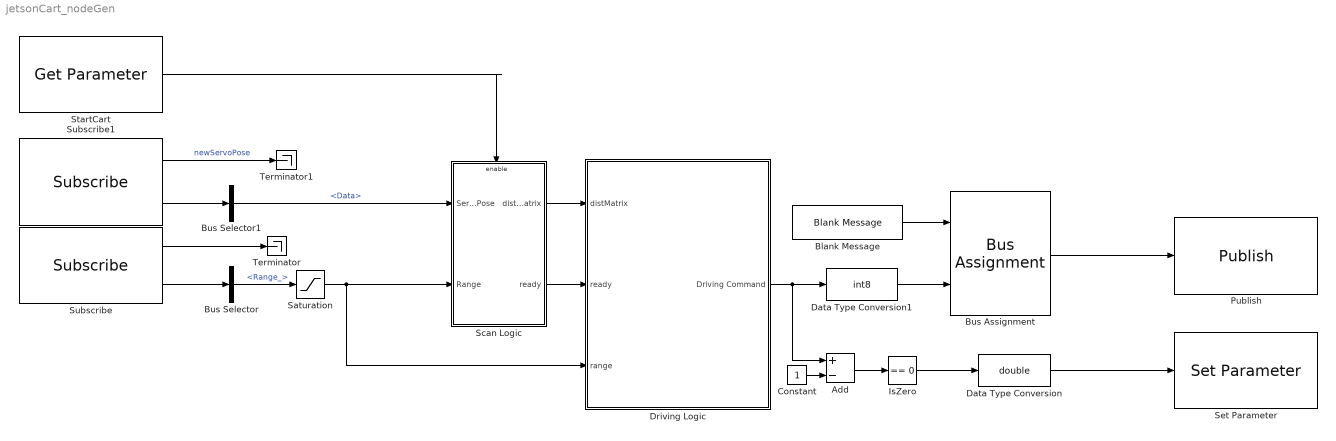
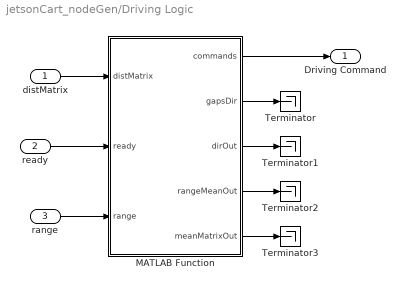
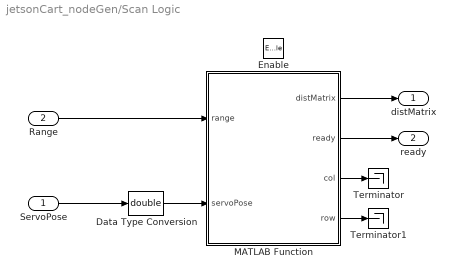
== matlab function jetsonCart_nodeGen/Driving Logic/MATLAB Function ==
function [commands, gapsDir, dirOut, rangeMeanOut, meanMatrixOut]  = fcn(distMatrix, ready, range)%#codegen
persistent doneScanning counter matrixTmp cmdTmp gapsTmp dirTmp rangeTmp meanMatrixTmp

if isempty(matrixTmp)
    matrixTmp = zeros(4,51);
end
if isempty(meanMatrixTmp)
    meanMatrixTmp = zeros(1,51);
end
if isempty(gapsTmp)
    gapsTmp = zeros(1,51);
end
if isempty(rangeTmp)
    rangeTmp = 0;
end
if isempty(dirTmp)
    dirTmp = 0;
end
if isempty(counter)
    counter = 0;
end
if isempty(cmdTmp)
    cmdTmp = 0;
end


if isnan(ready)
    cmdTmp = 1;
    doneScanning = 0;
    counter = 0;
elseif ready == 0
    cmdTmp = 1;
    doneScanning = 0;
    counter = 0;
else
    doneScanning = 1;
    matrixTmp = distMatrix;
end

if doneScanning == 1 && counter == 0
    counter = 1;
    meanMatrix = mean(matrixTmp);
    meanMatrixTmp = meanMatrix;
    gaps = zeros(1,51);
    for i = 1 : length(meanMatrix) - 5
        gaps(i) = mean(meanMatrix(i:i+5));
    end
    gapsTmp = gaps;
    [RangeMean, dir] = max(gaps);
    dirTmp = dir;
    rangeTmp = RangeMean;
    if RangeMean < 50
        cmdTmp = 3;
    else
        if dir <= 30 && dir >= 15
            cmdTmp = 2;
        elseif dir > 30
            cmdTmp = 5;
        else 
            cmdTmp = 4;
        end
    end
end


gapsDir = gapsTmp;
dirOut = dirTmp;
rangeMeanOut = rangeTmp;
meanMatrixOut = meanMatrixTmp;

%servoDir = (dir/51)*100 + 36;

if range < 50 %emergency stop
    cmdTmp = 1;
end

if cmdTmp ~=1
    counter = counter +1;
end

%control
if cmdTmp == 2 || cmdTmp == 3 %driving time for backward or forward drive
    drivingTime = 60;%driving time for backward or forward drive
elseif cmdTmp == 4
    drivingTime = abs((1-15/dirOut)*10 + 10)/2;
else
    drivingTime = abs((1 - 30/dirOut)*60 + 10)/2;
end

if counter > drivingTime
    cmdTmp = 1;
    counter = 0;
end

commands = cmdTmp;

== matlab function jetsonCart_nodeGen/Scan Logic/MATLAB Function ==
function [distMatrix, ready, col, row] = fcn(range, servoPose)%#codegen
persistent rangeMat i j flag

if isempty(rangeMat)
    rangeMat = zeros(4,51);
end

if isempty(i)
    i = 1;
end

if isempty(flag)
    flag = 0;
end

pose = servoPose;
if pose < 36
    pose = 36;
end
if pose > 136
    pose = 136;
end

if isempty(j)
    j = floor((pose - 36 + 2)/2);
end

if i < 5
    rangeMat(i,j) = range;
%     if flag == 1
%         j = j - 1;
%     else
%         j = j + 1;
%     end
    j = floor((pose - 36 + 2)/2);
end

if  j == 51 && flag == 0
    i = i+1;
    flag = 1;
end
if j == 1 && flag == 1
    flag = 0;
    i = i+1;
end

if  i == 5  
    ready = 1;
    i = 1;
    j = 1;
    flag = 0;
else
    ready = 0;
end

distMatrix = rangeMat;
col = j;
row = i;

//
// Academic License - for use in teaching, academic research, and meeting
// course requirements at degree granting institutions only.  Not for
// government, commercial, or other organizational use.
//
// File: jetsonCart_nodeGen.cpp
//
// Code generated for Simulink model 'jetsonCart_nodeGen'.
//
// Model version                  : 3.479
// Simulink Coder version         : 9.4 (R2020b) 29-Jul-2020
// C/C++ source code generated on : Thu May  6 20:03:16 2021
//
// Target selection: ert.tlc
// Embedded hardware selection: Intel->x86-64 (Linux 64)
// Code generation objectives: Unspecified
// Validation result: Not run
//
#include "jetsonCart_nodeGen.h"
#include "jetsonCart_nodeGen_private.h"

// Block signals (default storage)
B_jetsonCart_nodeGen_T jetsonCart_nodeGen_B;

// Block states (default storage)
DW_jetsonCart_nodeGen_T jetsonCart_nodeGen_DW;

// Real-time model
RT_MODEL_jetsonCart_nodeGen_T jetsonCart_nodeGen_M_ =
  RT_MODEL_jetsonCart_nodeGen_T();
RT_MODEL_jetsonCart_nodeGen_T *const jetsonCart_nodeGen_M =
  &jetsonCart_nodeGen_M_;

// Model step function
void jetsonCart_nodeGen_step(void)
{
  SL_Bus_jetsonCart_nodeGen_std_msgs_Int8 rtb_BusAssignment;
  SL_Bus_jetsonCart_nodeGen_std_msgs_UInt16 b_varargout_2;
  real_T drivingTime;
  int32_T pose;
  int32_T xpageoffset;
  real32_T rtb_Saturation;
  boolean_T b_varargout_1;
  boolean_T exitg1;

  // Outputs for Atomic SubSystem: '<Root>/Subscribe1'
  // MATLABSystem: '<S7>/SourceBlock' incorporates:
  //   Inport: '<S11>/In1'

  b_varargout_1 = Sub_jetsonCart_nodeGen_422.getLatestMessage(&b_varargout_2);

  // Outputs for Enabled SubSystem: '<S7>/Enabled Subsystem' incorporates:
  //   EnablePort: '<S11>/Enable'

  if (b_varargout_1) {
    jetsonCart_nodeGen_B.In1_o = b_varargout_2;
  }

  // End of MATLABSystem: '<S7>/SourceBlock'
  // End of Outputs for SubSystem: '<S7>/Enabled Subsystem'
  // End of Outputs for SubSystem: '<Root>/Subscribe1'

  // Outputs for Atomic SubSystem: '<Root>/Subscribe'
  // MATLABSystem: '<S6>/SourceBlock' incorporates:
  //   Inport: '<S10>/In1'

  b_varargout_1 = Sub_jetsonCart_nodeGen_419.getLatestMessage
    (&jetsonCart_nodeGen_B.b_varargout_2);

  // Outputs for Enabled SubSystem: '<S6>/Enabled Subsystem' incorporates:
  //   EnablePort: '<S10>/Enable'

  if (b_varargout_1) {
    jetsonCart_nodeGen_B.In1 = jetsonCart_nodeGen_B.b_varargout_2;
  }

  // End of MATLABSystem: '<S6>/SourceBlock'
  // End of Outputs for SubSystem: '<S6>/Enabled Subsystem'
  // End of Outputs for SubSystem: '<Root>/Subscribe'

  // Saturate: '<Root>/Saturation'
  if (jetsonCart_nodeGen_B.In1.Range_ > jetsonCart_nodeGen_P.Saturation_UpperSat)
  {
    rtb_Saturation = jetsonCart_nodeGen_P.Saturation_UpperSat;
  } else if (jetsonCart_nodeGen_B.In1.Range_ <
             jetsonCart_nodeGen_P.Saturation_LowerSat) {
    rtb_Saturation = jetsonCart_nodeGen_P.Saturation_LowerSat;
  } else {
    rtb_Saturation = jetsonCart_nodeGen_B.In1.Range_;
  }

  // End of Saturate: '<Root>/Saturation'

  // MATLABSystem: '<Root>/StartCart'
  ParamGet_jetsonCart_nodeGen_471.get_parameter(&drivingTime);

  // Outputs for Enabled SubSystem: '<Root>/Scan Logic' incorporates:
  //   EnablePort: '<S5>/Enable'

  if (drivingTime > 0.0) {
    // MATLAB Function: '<S5>/MATLAB Function' incorporates:
    //   DataTypeConversion: '<S5>/Data Type Conversion'

    pose = jetsonCart_nodeGen_B.In1_o.Data;
    if (jetsonCart_nodeGen_B.In1_o.Data < 36) {
      pose = 36;
    }

    if (pose > 136) {
      pose = 136;
    }

    if (!jetsonCart_nodeGen_DW.j_not_empty) {
      jetsonCart_nodeGen_DW.j = ((static_cast<real_T>(pose) - 36.0) + 2.0) / 2.0;
      jetsonCart_nodeGen_DW.j = floor(jetsonCart_nodeGen_DW.j);
      jetsonCart_nodeGen_DW.j_not_empty = true;
    }

    if (jetsonCart_nodeGen_DW.i < 5.0) {
      jetsonCart_nodeGen_DW.rangeMat[(static_cast<int32_T>
        (jetsonCart_nodeGen_DW.i) + ((static_cast<int32_T>
        (jetsonCart_nodeGen_DW.j) - 1) << 2)) - 1] = rtb_Saturation;
      jetsonCart_nodeGen_DW.j = ((static_cast<real_T>(pose) - 36.0) + 2.0) / 2.0;
      jetsonCart_nodeGen_DW.j = floor(jetsonCart_nodeGen_DW.j);
    }

    if ((jetsonCart_nodeGen_DW.j == 51.0) && (jetsonCart_nodeGen_DW.flag == 0.0))
    {
      jetsonCart_nodeGen_DW.i++;
      jetsonCart_nodeGen_DW.flag = 1.0;
    }

    if ((jetsonCart_nodeGen_DW.j == 1.0) && (jetsonCart_nodeGen_DW.flag == 1.0))
    {
      jetsonCart_nodeGen_DW.flag = 0.0;
      jetsonCart_nodeGen_DW.i++;
    }

    if (jetsonCart_nodeGen_DW.i == 5.0) {
      jetsonCart_nodeGen_B.ready = 1.0;
      jetsonCart_nodeGen_DW.i = 1.0;
      jetsonCart_nodeGen_DW.j = 1.0;
      jetsonCart_nodeGen_DW.flag = 0.0;
    } else {
      jetsonCart_nodeGen_B.ready = 0.0;
    }

    memcpy(&jetsonCart_nodeGen_B.distMatrix[0], &jetsonCart_nodeGen_DW.rangeMat
           [0], 204U * sizeof(real_T));

    // End of MATLAB Function: '<S5>/MATLAB Function'
  }

  // End of MATLABSystem: '<Root>/StartCart'
  // End of Outputs for SubSystem: '<Root>/Scan Logic'

  // Outputs for Atomic SubSystem: '<Root>/Driving Logic'
  // MATLAB Function: '<S2>/MATLAB Function'
  if (rtIsNaN(jetsonCart_nodeGen_B.ready)) {
    jetsonCart_nodeGen_DW.cmdTmp = 1.0;
    pose = 0;
    jetsonCart_nodeGen_DW.counter = 0.0;
  } else if (jetsonCart_nodeGen_B.ready == 0.0) {
    jetsonCart_nodeGen_DW.cmdTmp = 1.0;
    pose = 0;
    jetsonCart_nodeGen_DW.counter = 0.0;
  } else {
    pose = 1;
    memcpy(&jetsonCart_nodeGen_DW.matrixTmp[0],
           &jetsonCart_nodeGen_B.distMatrix[0], 204U * sizeof(real_T));
  }

  if ((pose == 1) && (jetsonCart_nodeGen_DW.counter == 0.0)) {
    jetsonCart_nodeGen_DW.counter = 1.0;
    for (pose = 0; pose < 51; pose++) {
      xpageoffset = pose << 2;
      jetsonCart_nodeGen_DW.meanMatrixTmp[pose] =
        jetsonCart_nodeGen_DW.matrixTmp[xpageoffset];
      jetsonCart_nodeGen_DW.meanMatrixTmp[pose] +=
        jetsonCart_nodeGen_DW.matrixTmp[xpageoffset + 1];
      jetsonCart_nodeGen_DW.meanMatrixTmp[pose] +=
        jetsonCart_nodeGen_DW.matrixTmp[xpageoffset + 2];
      jetsonCart_nodeGen_DW.meanMatrixTmp[pose] +=
        jetsonCart_nodeGen_DW.matrixTmp[xpageoffset + 3];
      jetsonCart_nodeGen_DW.meanMatrixTmp[pose] /= 4.0;
      jetsonCart_nodeGen_B.gapsTmp[pose] = 0.0;
    }

    for (pose = 0; pose < 46; pose++) {
      drivingTime = jetsonCart_nodeGen_DW.meanMatrixTmp[pose];
      for (xpageoffset = 0; xpageoffset < 5; xpageoffset++) {
        drivingTime += jetsonCart_nodeGen_DW.meanMatrixTmp[(xpageoffset + pose)
          + 1];
      }

      jetsonCart_nodeGen_B.gapsTmp[pose] = drivingTime / 6.0;
    }

    if (!rtIsNaN(jetsonCart_nodeGen_B.gapsTmp[0])) {
      pose = 1;
    } else {
      pose = 0;
      xpageoffset = 2;
      exitg1 = false;
      while ((!exitg1) && (xpageoffset < 52)) {
        if (!rtIsNaN(jetsonCart_nodeGen_B.gapsTmp[xpageoffset - 1])) {
          pose = xpageoffset;
          exitg1 = true;
        } else {
          xpageoffset++;
        }
      }
    }

    if (pose == 0) {
      drivingTime = jetsonCart_nodeGen_B.gapsTmp[0];
      pose = 1;
    } else {
      drivingTime = jetsonCart_nodeGen_B.gapsTmp[pose - 1];
      for (xpageoffset = pose; xpageoffset < 51; xpageoffset++) {
        if (drivingTime < jetsonCart_nodeGen_B.gapsTmp[xpageoffset]) {
          drivingTime = jetsonCart_nodeGen_B.gapsTmp[xpageoffset];
          pose = xpageoffset + 1;
        }
      }
    }

    jetsonCart_nodeGen_DW.dirTmp = pose;
    if (drivingTime < 50.0) {
      jetsonCart_nodeGen_DW.cmdTmp = 3.0;
    } else if ((pose <= 30) && (pose >= 15)) {
      jetsonCart_nodeGen_DW.cmdTmp = 2.0;
    } else if (pose > 30) {
      jetsonCart_nodeGen_DW.cmdTmp = 5.0;
    } else {
      jetsonCart_nodeGen_DW.cmdTmp = 4.0;
    }
  }

  if (rtb_Saturation < 50.0F) {
    jetsonCart_nodeGen_DW.cmdTmp = 1.0;
  }

  if (jetsonCart_nodeGen_DW.cmdTmp != 1.0) {
    jetsonCart_nodeGen_DW.counter++;
  }

  if ((jetsonCart_nodeGen_DW.cmdTmp == 2.0) || (jetsonCart_nodeGen_DW.cmdTmp ==
       3.0)) {
    drivingTime = 60.0;
  } else if (jetsonCart_nodeGen_DW.cmdTmp == 4.0) {
    drivingTime = fabs((1.0 - 15.0 / jetsonCart_nodeGen_DW.dirTmp) * 10.0 + 10.0)
      / 2.0;
  } else {
    drivingTime = fabs((1.0 - 30.0 / jetsonCart_nodeGen_DW.dirTmp) * 60.0 + 10.0)
      / 2.0;
  }

  if (jetsonCart_nodeGen_DW.counter > drivingTime) {
    jetsonCart_nodeGen_DW.cmdTmp = 1.0;
    jetsonCart_nodeGen_DW.counter = 0.0;
  }

  // DataTypeConversion: '<Root>/Data Type Conversion1' incorporates:
  //   MATLAB Function: '<S2>/MATLAB Function'

  drivingTime = floor(jetsonCart_nodeGen_DW.cmdTmp);

  // End of Outputs for SubSystem: '<Root>/Driving Logic'
  if (rtIsNaN(drivingTime) || rtIsInf(drivingTime)) {
    drivingTime = 0.0;
  } else {
    drivingTime = fmod(drivingTime, 256.0);
  }

  // BusAssignment: '<Root>/Bus Assignment' incorporates:
  //   DataTypeConversion: '<Root>/Data Type Conversion1'

  rtb_BusAssignment.Data = static_cast<int8_T>(drivingTime < 0.0 ?
    static_cast<int32_T>(static_cast<int8_T>(-static_cast<int8_T>
    (static_cast<uint8_T>(-drivingTime)))) : static_cast<int32_T>
    (static_cast<int8_T>(static_cast<uint8_T>(drivingTime))));

  // Outputs for Atomic SubSystem: '<Root>/Publish'
  // MATLABSystem: '<S4>/SinkBlock'
  Pub_jetsonCart_nodeGen_429.publish(&rtb_BusAssignment);

  // End of Outputs for SubSystem: '<Root>/Publish'

  // Outputs for Atomic SubSystem: '<Root>/Driving Logic'
  // MATLABSystem: '<Root>/Set Parameter' incorporates:
  //   Constant: '<Root>/Constant'
  //   Constant: '<S3>/Constant'
  //   DataTypeConversion: '<Root>/Data Type Conversion'
  //   MATLAB Function: '<S2>/MATLAB Function'
  //   RelationalOperator: '<S3>/Compare'
  //   Sum: '<Root>/Add'

  ParamSet_jetsonCart_nodeGen_479.set_parameter(static_cast<real_T>
    (jetsonCart_nodeGen_DW.cmdTmp - jetsonCart_nodeGen_P.Constant_Value_o ==
     jetsonCart_nodeGen_P.Constant_Value_a));

  // End of Outputs for SubSystem: '<Root>/Driving Logic'
}
